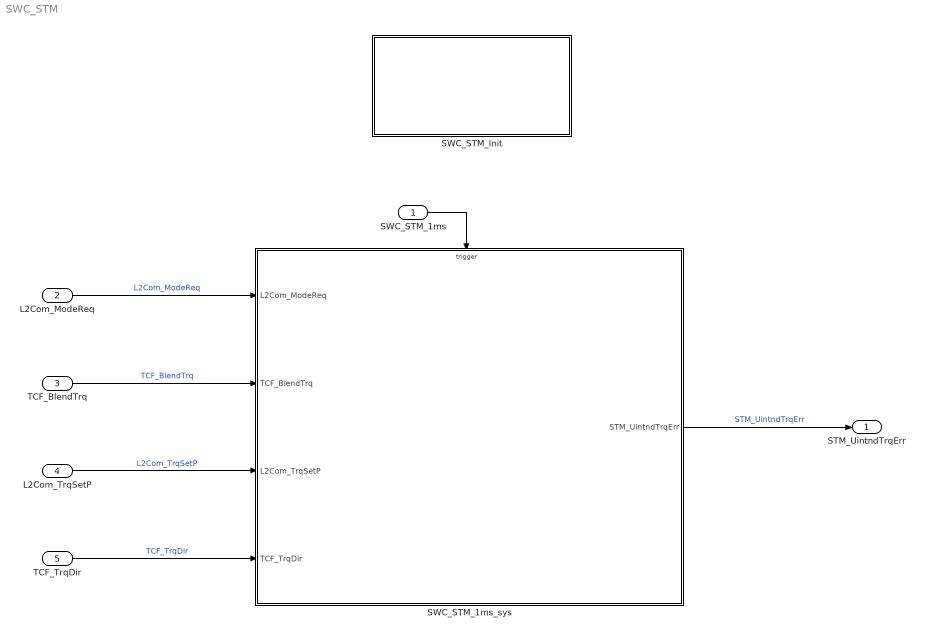
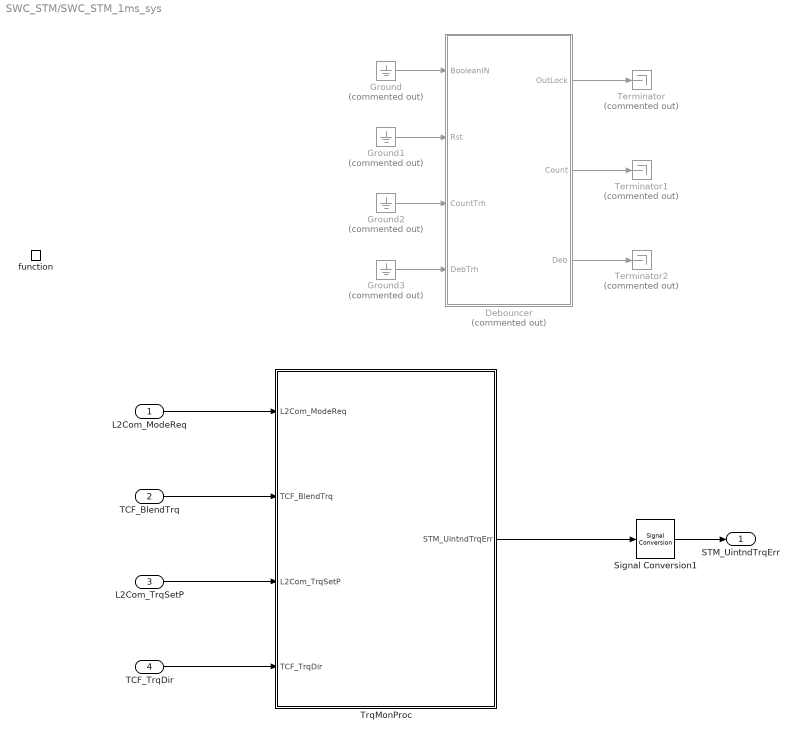
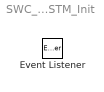
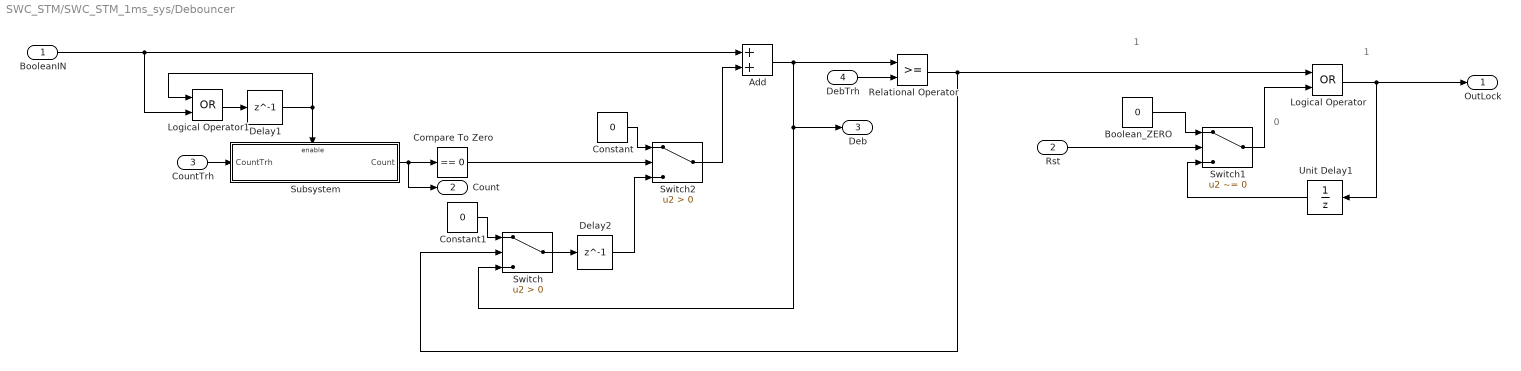
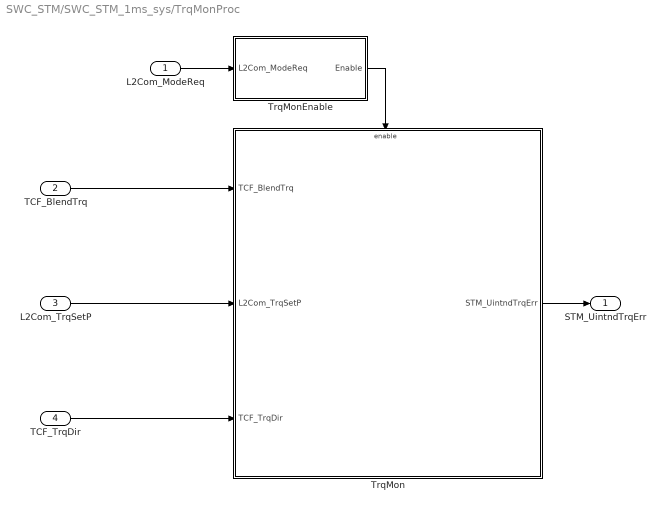
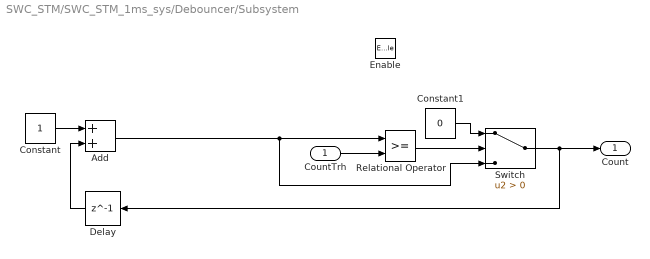
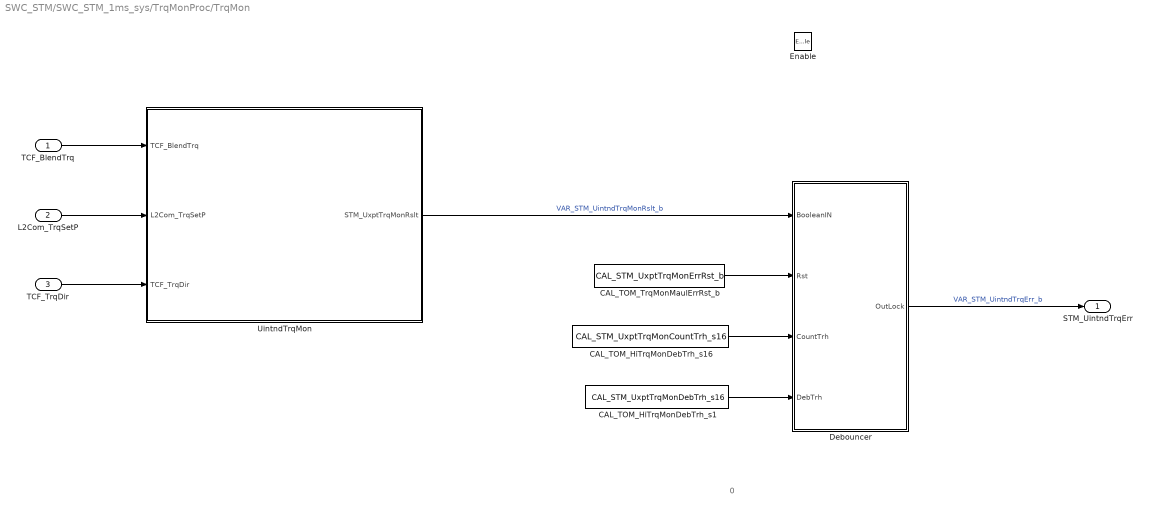
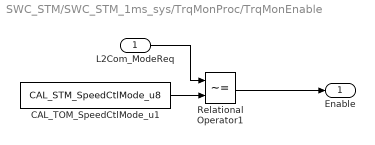
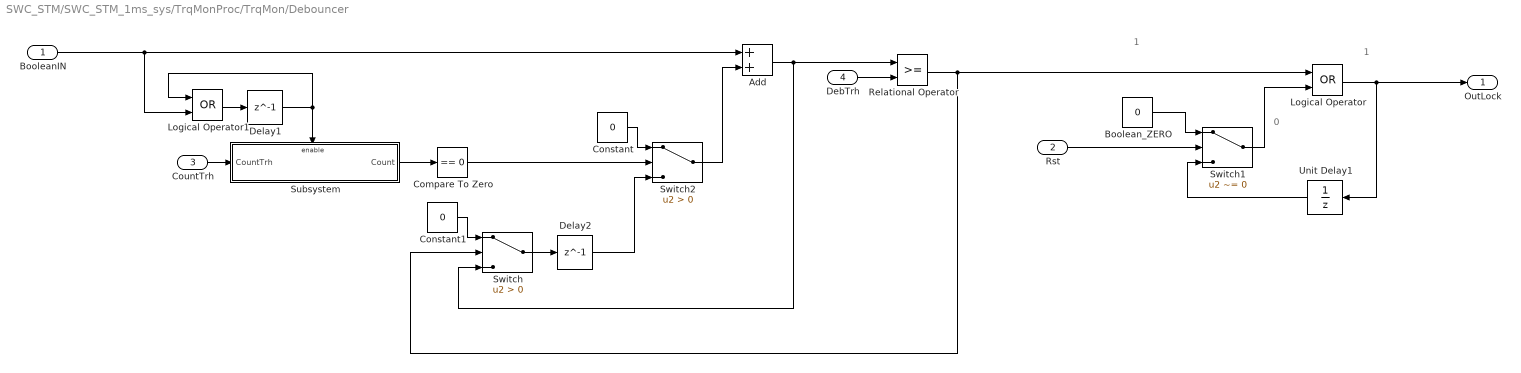
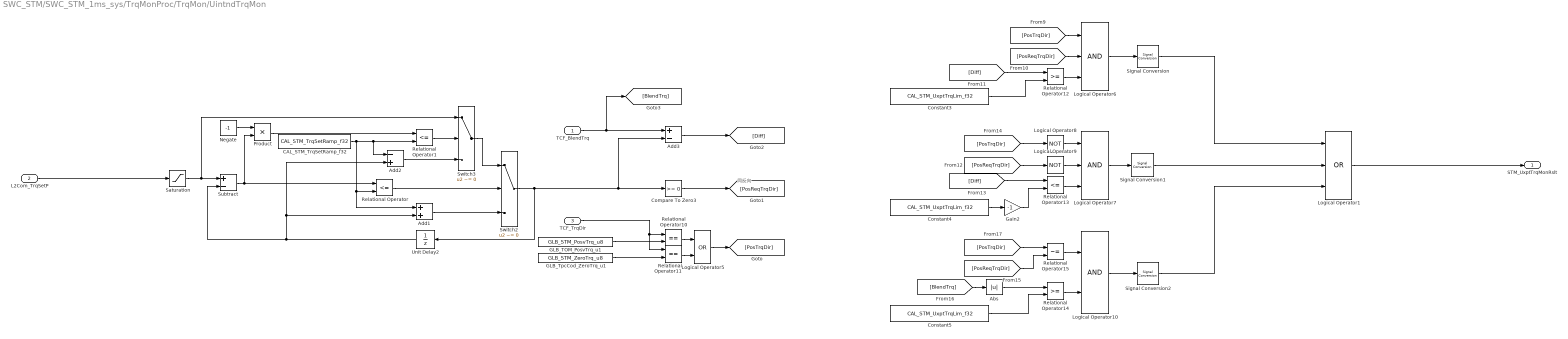
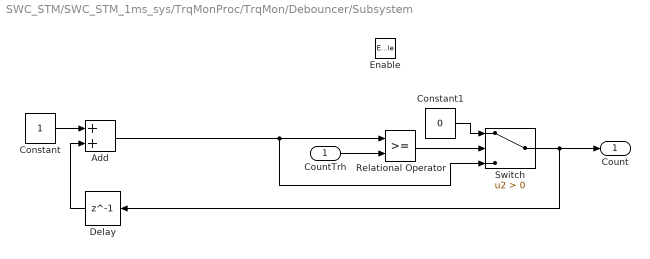
/*
 * File: SWC_STM.c
 *
 * Code generated for Simulink model 'SWC_STM'.
 *
 * Model version                  : 1.508
 * Simulink Coder version         : 9.3 (R2020a) 18-Nov-2019
 * C/C++ source code generated on : Wed Apr 27 16:14:23 2022
 *
 * Target selection: ert.tlc
 * Embedded hardware selection: Intel->x86-64 (Windows64)
 * Code generation objectives: Unspecified
 * Validation result: Not run
 */

#include "SWC_STM.h"
#include "SWC_STM_private.h"

/* user code (top of source file) */
#include "set_get_data.h"

/* Exported block signals */
boolean VAR_STM_UintndTrqMonRslt_b;    /* '<S7>/Logical Operator1' */
boolean VAR_STM_UintndTrqErr_b;        /* '<S6>/Logical Operator' */

/* Exported data definition */
#pragma section ".rodata.Calib_32"

/* Definition for custom storage class: iEDS_Parameter */
const volatile uint8 CAL_STM_SpeedCtlMode_u8 = 7U;
                             /* Referenced by: '<S5>/CAL_TOM_SpeedCtlMode_u1' */
const volatile float32 CAL_STM_TrqSetRamp_f32 = 20.0F;
                              /* Referenced by: '<S7>/CAL_STM_TrqSetRamp_f32' */
const volatile float32 CAL_STM_UxptTrqLim_f32 = 50.0F;/* Referenced by:
                                                       * '<S7>/Constant3'
                                                       * '<S7>/Constant4'
                                                       * '<S7>/Constant5'
                                                       */
const volatile sint16 CAL_STM_UxptTrqMonCountTrh_s16 = 100;
                          /* Referenced by: '<S4>/CAL_TOM_HiTrqMonDebTrh_s16' */
const volatile sint16 CAL_STM_UxptTrqMonDebTrh_s16 = 50;
                           /* Referenced by: '<S4>/CAL_TOM_HiTrqMonDebTrh_s1' */
const volatile boolean CAL_STM_UxptTrqMonErrRst_b = 0;
                          /* Referenced by: '<S4>/CAL_TOM_TrqMonMaulErrRst_b' */

#pragma section

/* Block states (default storage) */
DW_SWC_STM_T SWC_STM_DW;

/* Real-time model */
RT_MODEL_SWC_STM_T SWC_STM_M_;
RT_MODEL_SWC_STM_T *const SWC_STM_M = &SWC_STM_M_;

/* Output and update for atomic system: '<S4>/Debouncer' */
void SWC_STM_Debouncer(boolean rtu_BooleanIN, boolean rtu_Rst, sint16
  rtu_CountTrh, sint16 rtu_DebTrh, boolean *rty_OutLock, DW_Debouncer_SWC_STM_T *
  localDW)
{
  boolean rtb_RelationalOperator_l;

  /* Switch: '<S6>/Switch1' incorporates:
   *  UnitDelay: '<S6>/Unit Delay1'
   */
  localDW->UnitDelay1_DSTATE = ((!rtu_Rst) && localDW->UnitDelay1_DSTATE);

  /* Outputs for Enabled SubSystem: '<S6>/Subsystem' incorporates:
   *  EnablePort: '<S9>/Enable'
   */
  /* Delay: '<S6>/Delay1' */
  if (localDW->Delay1_DSTATE) {
    /* Sum: '<S9>/Add' incorporates:
     *  Constant: '<S9>/Constant'
     *  Delay: '<S9>/Delay'
     */
    localDW->Delay_DSTATE++;

    /* Switch: '<S9>/Switch' incorporates:
     *  Constant: '<S9>/Constant1'
     *  Delay: '<S9>/Delay'
     *  RelationalOperator: '<S9>/Relational Operator'
     */
    if (localDW->Delay_DSTATE >= rtu_CountTrh) {
      localDW->Delay_DSTATE = 0;
    }

    /* End of Switch: '<S9>/Switch' */
  }

  /* End of Outputs for SubSystem: '<S6>/Subsystem' */

  /* Switch: '<S6>/Switch2' incorporates:
   *  Constant: '<S6>/Constant'
   *  Constant: '<S8>/Constant'
   *  Delay: '<S6>/Delay2'
   *  Delay: '<S9>/Delay'
   *  RelationalOperator: '<S8>/Compare'
   */
  if (localDW->Delay_DSTATE == 0) {
    localDW->Delay2_DSTATE = 0;
  }

  /* End of Switch: '<S6>/Switch2' */

  /* Sum: '<S6>/Add' incorporates:
   *  Delay: '<S6>/Delay2'
   */
  localDW->Delay2_DSTATE += rtu_BooleanIN;

  /* RelationalOperator: '<S6>/Relational Operator' */
  rtb_RelationalOperator_l = (localDW->Delay2_DSTATE >= rtu_DebTrh);

  /* Logic: '<S6>/Logical Operator' incorporates:
   *  UnitDelay: '<S6>/Unit Delay1'
   */
  *rty_OutLock = (rtb_RelationalOperator_l || localDW->UnitDelay1_DSTATE);

  /* Switch: '<S6>/Switch' incorporates:
   *  Constant: '<S6>/Constant1'
   *  Delay: '<S6>/Delay2'
   */
  if (rtb_RelationalOperator_l) {
    localDW->Delay2_DSTATE = 0;
  }

  /* End of Switch: '<S6>/Switch' */

  /* Logic: '<S6>/Logical Operator1' incorporates:
   *  Delay: '<S6>/Delay1'
   */
  localDW->Delay1_DSTATE = (localDW->Delay1_DSTATE || rtu_BooleanIN);

  /* Update for UnitDelay: '<S6>/Unit Delay1' */
  localDW->UnitDelay1_DSTATE = *rty_OutLock;
}

/* Output and update for atomic system: '<S4>/UintndTrqMon' */
void SWC_STM_UintndTrqMon(void)
{
  float32 rtb_Saturation;
  float32 rtb_Subtract;
  boolean rtb_Compare;
  boolean rtb_LogicalOperator5;

  /* Saturate: '<S7>/Saturation' incorporates:
   *  Inport: '<Root>/L2Com_TrqSetP'
   */
  if (get_L2Com_TrqSetP() > 500.0F) {
    rtb_Saturation = 500.0F;
  } else if (get_L2Com_TrqSetP() < -500.0F) {
    rtb_Saturation = -500.0F;
  } else {
    rtb_Saturation = get_L2Com_TrqSetP();
  }

  /* End of Saturate: '<S7>/Saturation' */

  /* Sum: '<S7>/Subtract' incorporates:
   *  UnitDelay: '<S7>/Unit Delay2'
   */
  rtb_Subtract = rtb_Saturation - SWC_STM_DW.UnitDelay2_DSTATE;

  /* Switch: '<S7>/Switch2' incorporates:
   *  Constant: '<S7>/CAL_STM_TrqSetRamp_f32'
   *  RelationalOperator: '<S7>/Relational Operator'
   *  Sum: '<S7>/Add1'
   *  UnitDelay: '<S7>/Unit Delay2'
   */
  if (rtb_Subtract <= CAL_STM_TrqSetRamp_f32) {
    /* Switch: '<S7>/Switch3' incorporates:
     *  Product: '<S7>/Product'
     *  RelationalOperator: '<S7>/Relational Operator1'
     */
    if (-rtb_Subtract <= CAL_STM_TrqSetRamp_f32) {
      /* UnitDelay: '<S7>/Unit Delay2' */
      SWC_STM_DW.UnitDelay2_DSTATE = rtb_Saturation;
    } else {
      /* UnitDelay: '<S7>/Unit Delay2' incorporates:
       *  Sum: '<S7>/Add2'
       */
      SWC_STM_DW.UnitDelay2_DSTATE -= CAL_STM_TrqSetRamp_f32;
    }

    /* End of Switch: '<S7>/Switch3' */
  } else {
    SWC_STM_DW.UnitDelay2_DSTATE += CAL_STM_TrqSetRamp_f32;
  }

  /* End of Switch: '<S7>/Switch2' */

  /* RelationalOperator: '<S10>/Compare' incorporates:
   *  Constant: '<S10>/Constant'
   *  UnitDelay: '<S7>/Unit Delay2'
   */
  rtb_Compare = (SWC_STM_DW.UnitDelay2_DSTATE >= 0.0F);

  /* Logic: '<S7>/Logical Operator5' incorporates:
   *  Constant: '<S7>/GLB_TOM_PosvTrq_u1'
   *  Constant: '<S7>/GLB_TpcCod_ZeroTrq_u1'
   *  Inport: '<Root>/TCF_TrqDir'
   *  RelationalOperator: '<S7>/Relational Operator10'
   *  RelationalOperator: '<S7>/Relational Operator11'
   */
  rtb_LogicalOperator5 = ((get_TCF_TrqDir() == ((uint8)GLB_STM_PosvTrq_u8)) ||
    (get_TCF_TrqDir() == ((uint8)GLB_STM_ZeroTrq_u8)));

  /* Sum: '<S7>/Add3' incorporates:
   *  Inport: '<Root>/TCF_BlendTrq'
   *  UnitDelay: '<S7>/Unit Delay2'
   */
  rtb_Saturation = get_TCF_BlendTrq() - SWC_STM_DW.UnitDelay2_DSTATE;

  /* Logic: '<S7>/Logical Operator1' incorporates:
   *  Abs: '<S7>/Abs'
   *  Constant: '<S7>/Constant3'
   *  Constant: '<S7>/Constant4'
   *  Constant: '<S7>/Constant5'
   *  Gain: '<S7>/Gain2'
   *  Inport: '<Root>/TCF_BlendTrq'
   *  Logic: '<S7>/Logical Operator10'
   *  Logic: '<S7>/Logical Operator6'
   *  Logic: '<S7>/Logical Operator7'
   *  Logic: '<S7>/Logical Operator8'
   *  Logic: '<S7>/Logical Operator9'
   *  RelationalOperator: '<S7>/Relational Operator12'
   *  RelationalOperator: '<S7>/Relational Operator13'
   *  RelationalOperator: '<S7>/Relational Operator14'
   *  RelationalOperator: '<S7>/Relational Operator15'
   */
  VAR_STM_UintndTrqMonRslt_b = ((rtb_LogicalOperator5 && rtb_Compare &&
    (rtb_Saturation >= CAL_STM_UxptTrqLim_f32)) || ((!rtb_LogicalOperator5) && (
    !rtb_Compare) && (rtb_Saturation <= -CAL_STM_UxptTrqLim_f32)) ||
    ((rtb_LogicalOperator5 != rtb_Compare) && (fabsf(get_TCF_BlendTrq()) >=
    CAL_STM_UxptTrqLim_f32)));
}

/* Model step function for TID1 */
void SWC_STM_1ms(void)                 /* Explicit Task: SWC_STM_1ms */
{
  /* RootInportFunctionCallGenerator generated from: '<Root>/SWC_STM_1ms' incorporates:
   *  SubSystem: '<Root>/SWC_STM_1ms_sys'
   */
  /* Outputs for Enabled SubSystem: '<S3>/TrqMon' incorporates:
   *  EnablePort: '<S4>/Enable'
   */
  /* Outputs for Atomic SubSystem: '<S3>/TrqMonEnable' */
  /* RelationalOperator: '<S5>/Relational Operator1' incorporates:
   *  Constant: '<S4>/CAL_TOM_HiTrqMonDebTrh_s1'
   *  Constant: '<S4>/CAL_TOM_HiTrqMonDebTrh_s16'
   *  Constant: '<S4>/CAL_TOM_TrqMonMaulErrRst_b'
   *  Constant: '<S5>/CAL_TOM_SpeedCtlMode_u1'
   *  Inport: '<Root>/L2Com_ModeReq'
   */
  if (get_L2Com_ModeReq() != CAL_STM_SpeedCtlMode_u8) {
    /* Outputs for Atomic SubSystem: '<S4>/UintndTrqMon' */
    SWC_STM_UintndTrqMon();

    /* End of Outputs for SubSystem: '<S4>/UintndTrqMon' */

    /* Outputs for Atomic SubSystem: '<S4>/Debouncer' */
    SWC_STM_Debouncer(VAR_STM_UintndTrqMonRslt_b, CAL_STM_UxptTrqMonErrRst_b,
                      CAL_STM_UxptTrqMonCountTrh_s16,
                      CAL_STM_UxptTrqMonDebTrh_s16, &VAR_STM_UintndTrqErr_b,
                      &SWC_STM_DW.Debouncer);

    /* End of Outputs for SubSystem: '<S4>/Debouncer' */
  }

  /* End of RelationalOperator: '<S5>/Relational Operator1' */
  /* End of Outputs for SubSystem: '<S3>/TrqMonEnable' */
  /* End of Outputs for SubSystem: '<S3>/TrqMon' */

  /* SignalConversion: '<S1>/Signal Conversion1' */
  set_STM_UintndTrqErr(VAR_STM_UintndTrqErr_b);

  /* End of Outputs for RootInportFunctionCallGenerator generated from: '<Root>/SWC_STM_1ms' */
}
